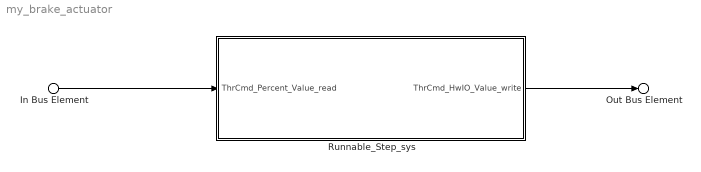
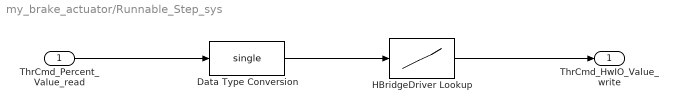
/*
 * File: my_brake_actuator.c
 *
 * Code generated for Simulink model 'my_brake_actuator'.
 *
 * Model version                  : 9.3
 * Simulink Coder version         : 24.1 (R2024a) 19-Nov-2023
 * C/C++ source code generated on : Mon Aug 12 17:48:24 2024
 *
 * Target selection: autosar.tlc
 * Embedded hardware selection: Intel->x86-64 (Windows64)
 * Code generation objectives: Unspecified
 * Validation result: Not run
 */

#include "my_brake_actuator.h"
#include "my_brake_actuator_private.h"

uint32 plook_u32f_linckan(float32 u, const float32 bp[], uint32 maxIndex)
{
  uint32 bpIndex;

  /* Prelookup - Index only
     Index Search method: 'linear'
     Interpolation method: 'Use nearest'
     Extrapolation method: 'Clip'
     Use previous index: 'off'
     Use last breakpoint for index at or above upper limit: 'on'
     Remove protection against out-of-range input in generated code: 'off'
   */
  if (u <= bp[0U]) {
    bpIndex = 0U;
  } else if (u < bp[maxIndex]) {
    bpIndex = linsearch_u32f(u, bp, maxIndex >> 1U);
    if ((bpIndex < maxIndex) && (bp[bpIndex + 1U] - u <= u - bp[bpIndex])) {
      bpIndex++;
    }
  } else {
    bpIndex = maxIndex;
  }

  return bpIndex;
}

uint32 linsearch_u32f(float32 u, const float32 bp[], uint32 startIndex)
{
  uint32 bpIndex;

  /* Linear Search */
  for (bpIndex = startIndex; u < bp[bpIndex]; bpIndex--) {
  }

  while (u >= bp[bpIndex + 1U]) {
    bpIndex++;
  }

  return bpIndex;
}

/* Model step function */
void Runnable_Step(void)
{
  /* Outputs for Atomic SubSystem: '<Root>/Runnable_Step_sys' */
  /* Outport generated from: '<Root>/Out Bus Element' incorporates:
   *  Inport generated from: '<Root>/In Bus Element'
   *  Lookup_n-D: '<S1>/HBridgeDriver Lookup'
   */
  Rte_IWrite_Runnable_Step_ThrCmd_HwIO_Value((Rte_CData_HBridgeCmd_LkupTbl())
    ->Table[plook_u32f_linckan(Rte_IRead_Runnable_Step_ThrCmd_Percent_Value(),
    (Rte_CData_HBridgeCmd_LkupTbl())->BP1, 20U)]);

  /* End of Outputs for SubSystem: '<Root>/Runnable_Step_sys' */
}
